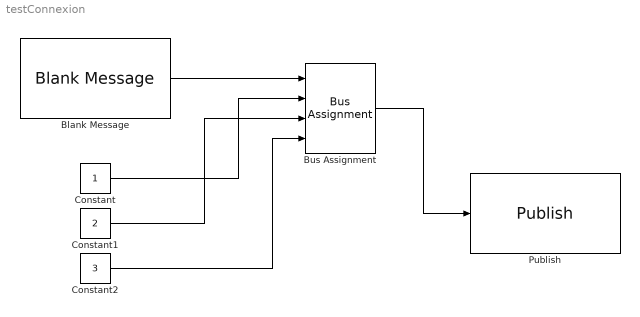
//
// Academic License - for use in teaching, academic research, and meeting
// course requirements at degree granting institutions only.  Not for
// government, commercial, or other organizational use.
//
// File: testConnexion.cpp
//
// Code generated for Simulink model 'testConnexion'.
//
// Model version                  : 1.1
// Simulink Coder version         : 9.3 (R2020a) 18-Nov-2019
// C/C++ source code generated on : Thu May  7 16:24:36 2020
//
// Target selection: ert.tlc
// Embedded hardware selection: Generic->Unspecified (assume 32-bit Generic)
// Code generation objectives: Unspecified
// Validation result: Not run
//
#include "testConnexion.h"
#include "testConnexion_private.h"
#include "testConnexion_dt.h"

// Block states (default storage)
DW_testConnexion_T testConnexion_DW;

// Real-time model
RT_MODEL_testConnexion_T testConnexion_M_ = RT_MODEL_testConnexion_T();
RT_MODEL_testConnexion_T *const testConnexion_M = &testConnexion_M_;

// Forward declaration for local functions
static void matlabCodegenHandle_matlabCodeg(ros_slros_internal_block_Publ_T *obj);
static void matlabCodegenHandle_matlabCodeg(ros_slros_internal_block_Publ_T *obj)
{
  if (!obj->matlabCodegenIsDeleted) {
    obj->matlabCodegenIsDeleted = true;
  }
}

// Model step function
void testConnexion_step(void)
{
  SL_Bus_testConnexion_geometry_msgs_Point rtb_BusAssignment;

  // BusAssignment: '<Root>/Bus Assignment' incorporates:
  //   Constant: '<Root>/Constant'
  //   Constant: '<Root>/Constant1'
  //   Constant: '<Root>/Constant2'

  rtb_BusAssignment.X = testConnexion_P.Constant_Value_f;
  rtb_BusAssignment.Y = testConnexion_P.Constant1_Value;
  rtb_BusAssignment.Z = testConnexion_P.Constant2_Value;

  // Outputs for Atomic SubSystem: '<Root>/Publish'
  // MATLABSystem: '<S2>/SinkBlock'
  Pub_testConnexion_2.publish(&rtb_BusAssignment);

  // End of Outputs for SubSystem: '<Root>/Publish'

  // External mode
  rtExtModeUploadCheckTrigger(1);

  {                                    // Sample time: [1.0s, 0.0s]
    rtExtModeUpload(0, (real_T)testConnexion_M->Timing.taskTime0);
  }

  // signal main to stop simulation
  {                                    // Sample time: [1.0s, 0.0s]
    if ((rtmGetTFinal(testConnexion_M)!=-1) &&
        !((rtmGetTFinal(testConnexion_M)-testConnexion_M->Timing.taskTime0) >
          testConnexion_M->Timing.taskTime0 * (DBL_EPSILON))) {
      rtmSetErrorStatus(testConnexion_M, "Simulation finished");
    }

    if (rtmGetStopRequested(testConnexion_M)) {
      rtmSetErrorStatus(testConnexion_M, "Simulation finished");
    }
  }

  // Update absolute time for base rate
  // The "clockTick0" counts the number of times the code of this task has
  //  been executed. The absolute time is the multiplication of "clockTick0"
  //  and "Timing.stepSize0". Size of "clockTick0" ensures timer will not
  //  overflow during the application lifespan selected.

  testConnexion_M->Timing.taskTime0 =
    ((time_T)(++testConnexion_M->Timing.clockTick0)) *
    testConnexion_M->Timing.stepSize0;
}
